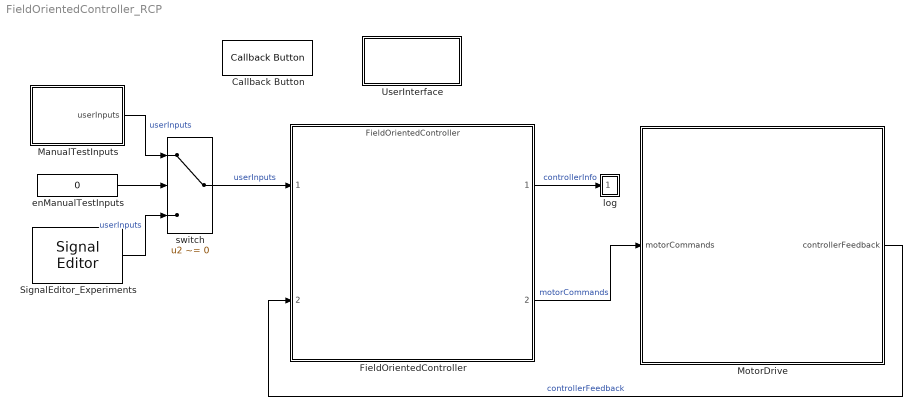
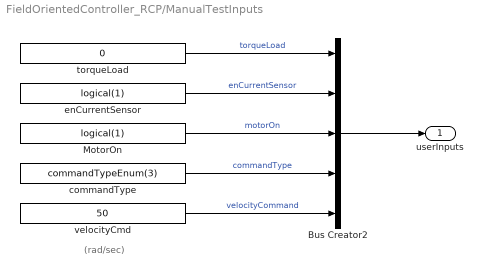
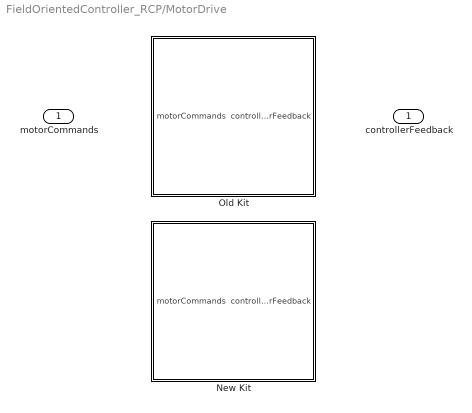
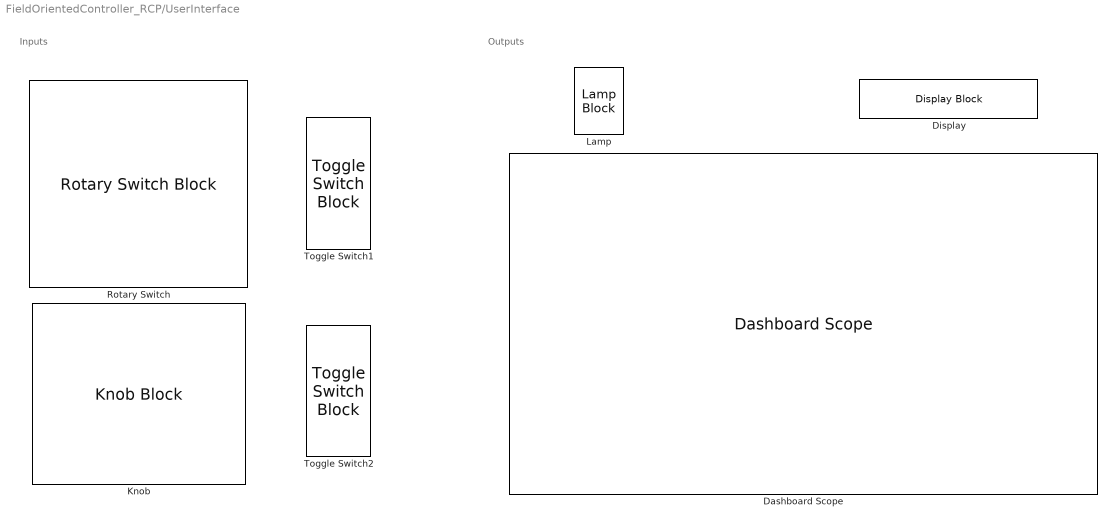
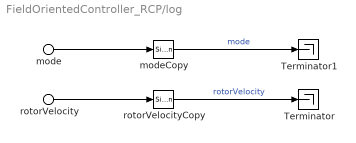
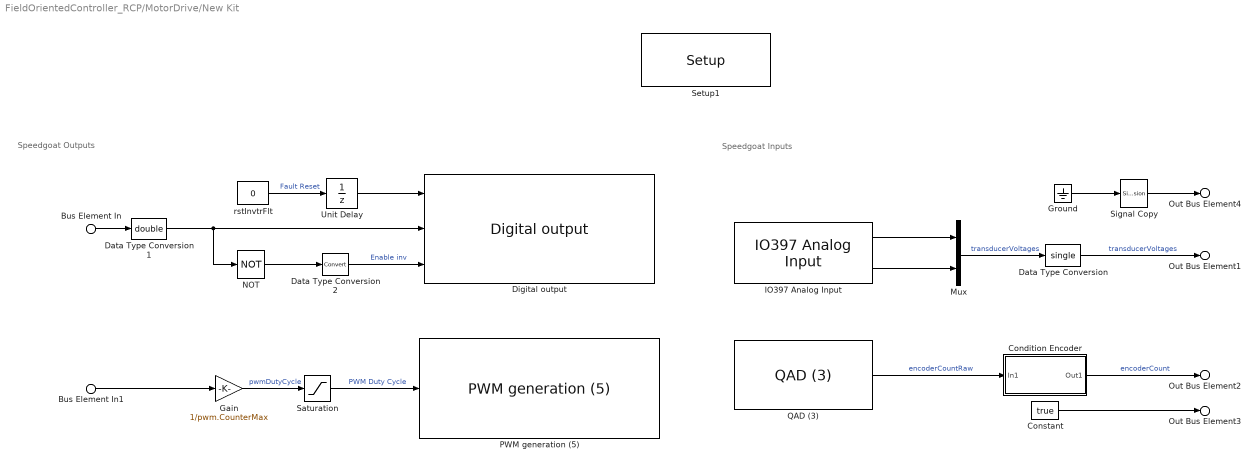
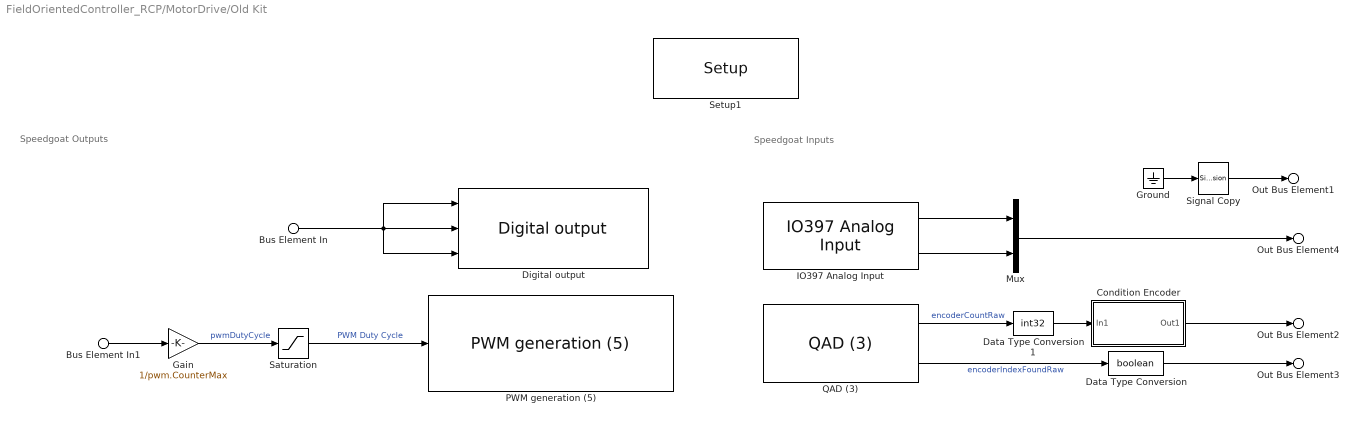
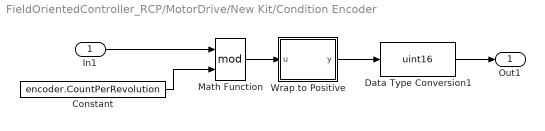
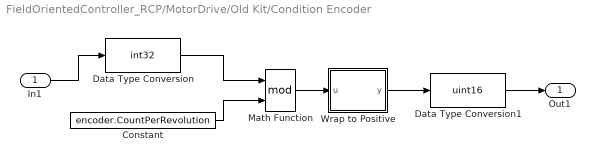
== matlab function FieldOrientedController_RCP/MotorDrive/Old Kit/Condition Encoder/Wrap to Positive ==
function y = fcn(u,cntsPerRevolution,positiveDirection)
% Guarantee the count is between 0 and cntsPerRevolution
% (Speedgoat count can be negative)

% Simplest case
y=u;

% % Max consecutive index pulses that can be missed
% maxIndexPulseMissesToRecoverFrom = 2;
% 
% for index = 1:maxIndexPulseMissesToRecoverFrom
%     if y >= cntsPerRevolution
%         y = y - cntsPerRevolution;
%     elseif y < -cntsPerRevolution
%         y = y + cntsPerRevolution;
%     end
% end
% 
% % Wrap angle to positive value
% if (y<0)
%     y = cntsPerRevolution + y;
% end

% Handle case of swapping encoder A & B signals
if positiveDirection ~= 1
    y = (cntsPerRevolution-1) - y;
end

== matlab function FieldOrientedController_RCP/MotorDrive/New Kit/Condition Encoder/Wrap to Positive ==
function y = fcn(u,cntsPerRevolution,positiveDirection)
% Guarantee the count is between 0 and cntsPerRevolution
% (Speedgoat count can be negative)

% Simplest case
y=u;

% % Max consecutive index pulses that can be missed
% maxIndexPulseMissesToRecoverFrom = 2;
% 
% for index = 1:maxIndexPulseMissesToRecoverFrom
%     if y >= cntsPerRevolution
%         y = y - cntsPerRevolution;
%     elseif y < -cntsPerRevolution
%         y = y + cntsPerRevolution;
%     end
% end
% 
% % Wrap angle to positive value
% if (y<0)
%     y = cntsPerRevolution + y;
% end

% Handle case of swapping encoder A & B signals
if positiveDirection ~= 1
    y = (cntsPerRevolution-1) - y;
end

/*
 * FieldOrientedController_RCP.cpp
 *
 * Sponsored Third Party Support License -- for use only to support
 * products interfaced to MathWorks software under terms specified in your
 * company's restricted use license agreement.
 *
 * Code generation for model "FieldOrientedController_RCP".
 *
 * Model version              : 2.10
 * Simulink Coder version : 9.4 (R2020b) 29-Jul-2020
 * C++ source code generated on : Wed Mar  3 10:56:14 2021
 *
 * Target selection: slrealtime.tlc
 * Note: GRT includes extra infrastructure and instrumentation for prototyping
 * Embedded hardware selection: Intel->x86-64 (Linux 64)
 * Code generation objectives: Unspecified
 * Validation result: Not run
 */

#include "FieldOrientedController_RCP.h"
#include "FieldOrientedController_RCP_private.h"
#include "rt_roundd_snf.h"

rtTimingBridge FieldOrientedController_RCP_TimingBrdg;
const userInputs FieldOrientedController_RCP_rtZuserInputs = {
  0.0,                                 /* torqueLoad */
  false,                               /* enCurrentSensor */
  false,                               /* motorOn */
  commandTypeEnum_Error,               /* commandType */
  0.0F                                 /* velocityCommand */
} ;                                    /* userInputs ground */

/* Block signals (default storage) */
B_FieldOrientedController_RCP_T FieldOrientedController_RCP_B;

/* Block states (default storage) */
DW_FieldOrientedController_RCP_T FieldOrientedController_RCP_DW;

/* Real-time model */
RT_MODEL_FieldOrientedController_RCP_T FieldOrientedController_RCP_M_ =
  RT_MODEL_FieldOrientedController_RCP_T();
RT_MODEL_FieldOrientedController_RCP_T *const FieldOrientedController_RCP_M =
  &FieldOrientedController_RCP_M_;

/*
 *   This function updates active task flag for each subrate.
 * The function is called in the model base rate function.
 * It maintains SampleHit information to allow scheduling
 * of the subrates from the base rate function.
 */
void rate_scheduler(void)
{
  /* Compute which subrates run during the next base time step.  Subrates
   * are an integer multiple of the base rate counter.  Therefore, the subtask
   * counter is reset when it reaches its limit (zero means run).
   */
  (FieldOrientedController_RCP_M->Timing.TaskCounters.TID[1])++;
  if ((FieldOrientedController_RCP_M->Timing.TaskCounters.TID[1]) > 19) {/* Sample time: [0.001s, 0.0s] */
    FieldOrientedController_RCP_M->Timing.TaskCounters.TID[1] = 0;
  }
}

/* Model step function for TID0 */
void FieldOrientedController_RCP_step0(void) /* Sample time: [5.0E-5s, 0.0s] */
{
  real_T u0;
  uint32_T u0_0;
  uint32_T u1;

  /* Update the flag to indicate when data transfers from
   *  Sample time: [5.0E-5s, 0.0s] to Sample time: [0.001s, 0.0s]  */
  FieldOrientedController_RCP_M->Timing.perTaskSampleHits[1] =
    (FieldOrientedController_RCP_M->Timing.RateInteraction.TID0_1 == 0);
  FieldOrientedController_RCP_M->Timing.RateInteraction.b_TID0_1 =
    (FieldOrientedController_RCP_M->Timing.RateInteraction.TID0_1 == 0);
  (FieldOrientedController_RCP_M->Timing.RateInteraction.TID0_1)++;
  if ((FieldOrientedController_RCP_M->Timing.RateInteraction.TID0_1) > 19) {
    FieldOrientedController_RCP_M->Timing.RateInteraction.TID0_1 = 0;
  }

  /* SignalConversion: '<S6>/Signal Copy' */
  FieldOrientedController_RCP_B.SignalCopy = 0.0F;

  /* S-Function (sg_fpga_IO397_ad): '<S6>/IO397 Analog Input' */

  /* Level2 S-Function Block: '<S6>/IO397 Analog Input' (sg_fpga_IO397_ad) */
  {
    SimStruct *rts = FieldOrientedController_RCP_M->childSfunctions[0];
    sfcnOutputs(rts,0);
  }

  /* DataTypeConversion: '<S6>/Data Type Conversion' */
  FieldOrientedController_RCP_B.transducerVoltages[0] = static_cast<real32_T>
    (FieldOrientedController_RCP_B.IO397AnalogInput_o1);
  FieldOrientedController_RCP_B.transducerVoltages[1] = static_cast<real32_T>
    (FieldOrientedController_RCP_B.IO397AnalogInput_o2);

  /* Constant: '<S6>/Constant' */
  FieldOrientedController_RCP_B.Constant =
    FieldOrientedController_RCP_cal->Constant_Value_h;

  /* S-Function (sg_fpga_qad_sf_3): '<S6>/QAD (3)' */

  /* Level2 S-Function Block: '<S6>/QAD (3)' (sg_fpga_qad_sf_3) */
  {
    SimStruct *rts = FieldOrientedController_RCP_M->childSfunctions[1];
    sfcnOutputs(rts,0);
  }

  /* Math: '<S7>/Math Function' incorporates:
   *  Constant: '<S7>/Constant'
   */
  u0_0 = FieldOrientedController_RCP_B.encoderCountRaw;
  u1 = FieldOrientedController_RCP_cal->Constant_Value;
  if (u1 == 0U) {
    /* Math: '<S7>/Math Function' */
    FieldOrientedController_RCP_B.MathFunction = u0_0;
  } else {
    /* Math: '<S7>/Math Function' */
    FieldOrientedController_RCP_B.MathFunction = u0_0 % u1;
  }

  /* End of Math: '<S7>/Math Function' */

  /* MATLAB Function: '<S7>/Wrap to Positive' */
  /* MATLAB Function 'MotorDrive/New Kit/Condition Encoder/Wrap to Positive': '<S8>:1' */
  /* '<S8>:1:6' */
  FieldOrientedController_RCP_B.y = FieldOrientedController_RCP_B.MathFunction;
  if (FieldOrientedController_RCP_cal->ConditionEncoder_positiveDirection != 1.0)
  {
    /* '<S8>:1:25' */
    /* '<S8>:1:26' */
    u0 = rt_roundd_snf
      ((FieldOrientedController_RCP_cal->ConditionEncoder_cntsPerRevolution -
        1.0) - static_cast<real_T>(FieldOrientedController_RCP_B.MathFunction));
    if (u0 < 4.294967296E+9) {
      if (u0 >= 0.0) {
        u0_0 = static_cast<uint32_T>(u0);
      } else {
        u0_0 = 0U;
      }
    } else {
      u0_0 = MAX_uint32_T;
    }

    FieldOrientedController_RCP_B.y = u0_0;
  }

  /* End of MATLAB Function: '<S7>/Wrap to Positive' */

  /* DataTypeConversion: '<S7>/Data Type Conversion1' */
  FieldOrientedController_RCP_B.DataTypeConversion1_e = static_cast<uint16_T>
    (FieldOrientedController_RCP_B.y);

  /* ModelReference generated from: '<Root>/FieldOrientedController' */
  FieldOrientedControllerTID0(&FieldOrientedController_RCP_B.transducerVoltages
    [0], &FieldOrientedController_RCP_B.Constant,
    &FieldOrientedController_RCP_B.DataTypeConversion1_e,
    &FieldOrientedController_RCP_B.enInverter,
    &FieldOrientedController_RCP_B.pwmCompare[0]);

  /* RateTransition generated from: '<Root>/FieldOrientedController' */
  if (FieldOrientedController_RCP_M->Timing.RateInteraction.TID0_1 == 1) {
    FieldOrientedController_RCP_DW.userInputs_RdBufIdx = static_cast<int8_T>
      (FieldOrientedController_RCP_DW.userInputs_RdBufIdx == 0);
  }

  /* RateTransition generated from: '<Root>/FieldOrientedController' */
  FieldOrientedController_RCP_B.userInputs_j =
    FieldOrientedController_RCP_DW.userInputs_Buf[FieldOrientedController_RCP_DW.userInputs_RdBufIdx];

  /* RateTransition generated from: '<Root>/FieldOrientedController' */
  if (FieldOrientedController_RCP_M->Timing.RateInteraction.TID0_1 == 1) {
    FieldOrientedController_RCP_DW.userInputs1_RdBufIdx = static_cast<int8_T>
      (FieldOrientedController_RCP_DW.userInputs1_RdBufIdx == 0);
  }

  /* RateTransition generated from: '<Root>/FieldOrientedController' */
  FieldOrientedController_RCP_B.userInputs1 =
    FieldOrientedController_RCP_DW.userInputs1_Buf[FieldOrientedController_RCP_DW.userInputs1_RdBufIdx];

  /* UnitDelay: '<S6>/Unit Delay' */
  FieldOrientedController_RCP_B.UnitDelay =
    FieldOrientedController_RCP_DW.UnitDelay_DSTATE;

  /* DataTypeConversion: '<S6>/Data Type Conversion1' */
  FieldOrientedController_RCP_B.DataTypeConversion1 =
    FieldOrientedController_RCP_B.enInverter;

  /* Logic: '<S6>/NOT' */
  FieldOrientedController_RCP_B.NOT =
    !(FieldOrientedController_RCP_B.DataTypeConversion1 != 0.0);

  /* DataTypeConversion: '<S6>/Data Type Conversion2' */
  FieldOrientedController_RCP_B.Enableinv = FieldOrientedController_RCP_B.NOT;

  /* S-Function (sg_fpga_do_sf_a2): '<S6>/Digital output' */

  /* Level2 S-Function Block: '<S6>/Digital output' (sg_fpga_do_sf_a2) */
  {
    SimStruct *rts = FieldOrientedController_RCP_M->childSfunctions[2];
    sfcnOutputs(rts,0);
  }

  /* Gain: '<S6>/Gain' */
  FieldOrientedController_RCP_B.pwmDutyCycle[0] = static_cast<real_T>
    (FieldOrientedController_RCP_cal->Gain_Gain) * 1.4901161193847656E-8 *
    static_cast<real_T>(FieldOrientedController_RCP_B.pwmCompare[0]);
  FieldOrientedController_RCP_B.pwmDutyCycle[1] = static_cast<real_T>
    (FieldOrientedController_RCP_cal->Gain_Gain) * 1.4901161193847656E-8 *
    static_cast<real_T>(FieldOrientedController_RCP_B.pwmCompare[1]);
  FieldOrientedController_RCP_B.pwmDutyCycle[2] = static_cast<real_T>
    (FieldOrientedController_RCP_cal->Gain_Gain) * 1.4901161193847656E-8 *
    static_cast<real_T>(FieldOrientedController_RCP_B.pwmCompare[2]);

  /* Saturate: '<S6>/Saturation' */
  u0 = FieldOrientedController_RCP_B.pwmDutyCycle[0];
  if (u0 > FieldOrientedController_RCP_cal->Saturation_UpperSat) {
    u0 = FieldOrientedController_RCP_cal->Saturation_UpperSat;
  } else {
    if (u0 < FieldOrientedController_RCP_cal->Saturation_LowerSat) {
      u0 = FieldOrientedController_RCP_cal->Saturation_LowerSat;
    }
  }

  /* Saturate: '<S6>/Saturation' */
  FieldOrientedController_RCP_B.PWMDutyCycle[0] = u0;

  /* Saturate: '<S6>/Saturation' */
  u0 = FieldOrientedController_RCP_B.pwmDutyCycle[1];
  if (u0 > FieldOrientedController_RCP_cal->Saturation_UpperSat) {
    u0 = FieldOrientedController_RCP_cal->Saturation_UpperSat;
  } else {
    if (u0 < FieldOrientedController_RCP_cal->Saturation_LowerSat) {
      u0 = FieldOrientedController_RCP_cal->Saturation_LowerSat;
    }
  }

  /* Saturate: '<S6>/Saturation' */
  FieldOrientedController_RCP_B.PWMDutyCycle[1] = u0;

  /* Saturate: '<S6>/Saturation' */
  u0 = FieldOrientedController_RCP_B.pwmDutyCycle[2];
  if (u0 > FieldOrientedController_RCP_cal->Saturation_UpperSat) {
    u0 = FieldOrientedController_RCP_cal->Saturation_UpperSat;
  } else {
    if (u0 < FieldOrientedController_RCP_cal->Saturation_LowerSat) {
      u0 = FieldOrientedController_RCP_cal->Saturation_LowerSat;
    }
  }

  /* Saturate: '<S6>/Saturation' */
  FieldOrientedController_RCP_B.PWMDutyCycle[2] = u0;

  /* S-Function (sg_fpga_pwm_sf_5): '<S6>/PWM generation (5)' */

  /* Level2 S-Function Block: '<S6>/PWM generation (5)' (sg_fpga_pwm_sf_5) */
  {
    SimStruct *rts = FieldOrientedController_RCP_M->childSfunctions[3];
    sfcnOutputs(rts,0);
  }

  /* Update for UnitDelay: '<S6>/Unit Delay' incorporates:
   *  Constant: '<S6>/rstInvtrFlt'
   */
  FieldOrientedController_RCP_DW.UnitDelay_DSTATE =
    FieldOrientedController_RCP_cal->rstInvtrFlt_Value;

  /* Update absolute time */
  /* The "clockTick0" counts the number of times the code of this task has
   * been executed. The absolute time is the multiplication of "clockTick0"
   * and "Timing.stepSize0". Size of "clockTick0" ensures timer will not
   * overflow during the application lifespan selected.
   * Timer of this task consists of two 32 bit unsigned integers.
   * The two integers represent the low bits Timing.clockTick0 and the high bits
   * Timing.clockTickH0. When the low bit overflows to 0, the high bits increment.
   */
  if (!(++FieldOrientedController_RCP_M->Timing.clockTick0)) {
    ++FieldOrientedController_RCP_M->Timing.clockTickH0;
  }

  FieldOrientedController_RCP_M->Timing.t[0] =
    FieldOrientedController_RCP_M->Timing.clockTick0 *
    FieldOrientedController_RCP_M->Timing.stepSize0 +
    FieldOrientedController_RCP_M->Timing.clockTickH0 *
    FieldOrientedController_RCP_M->Timing.stepSize0 * 4294967296.0;
}

/* Model step function for TID1 */
void FieldOrientedController_RCP_step1(void) /* Sample time: [0.001s, 0.0s] */
{
  /* Constant: '<S1>/velocityCmd' */
  FieldOrientedController_RCP_B.velocityCommand =
    FieldOrientedController_RCP_cal->velocityCmd_Value;

  /* BusCreator: '<S1>/Bus Creator2' incorporates:
   *  Constant: '<S1>/MotorOn'
   *  Constant: '<S1>/commandType'
   *  Constant: '<S1>/enCurrentSensor'
   *  Constant: '<S1>/torqueLoad'
   */
  FieldOrientedController_RCP_B.BusCreator2.torqueLoad =
    FieldOrientedController_RCP_cal->torqueLoad_Value;
  FieldOrientedController_RCP_B.BusCreator2.enCurrentSensor =
    FieldOrientedController_RCP_cal->enCurrentSensor_Value;
  FieldOrientedController_RCP_B.BusCreator2.motorOn =
    FieldOrientedController_RCP_cal->MotorOn_Value;
  FieldOrientedController_RCP_B.BusCreator2.commandType =
    FieldOrientedController_RCP_cal->commandType_Value;
  FieldOrientedController_RCP_B.BusCreator2.velocityCommand =
    FieldOrientedController_RCP_B.velocityCommand;

  /* FromWorkspace: '<S3>/fromWS_Signal 1' */
  {
    real_T t = (((FieldOrientedController_RCP_M->Timing.clockTick1+
                  FieldOrientedController_RCP_M->Timing.clockTickH1*
                  4294967296.0)) * 0.001);
    real_T *pTimeValues = static_cast<real_T *>
      (FieldOrientedController_RCP_DW.fromWS_Signal1_PWORK.TimePtr[0]);
    real_T *pDataValues = static_cast<real_T *>
      (FieldOrientedController_RCP_DW.fromWS_Signal1_PWORK.DataPtr[0]);
    if (t < pTimeValues[0]) {
      FieldOrientedController_RCP_B.userInputs_a.torqueLoad =
        FieldOrientedController_RCP_rtZuserInputs.torqueLoad;
    } else if (t >= pTimeValues[1]) {
      FieldOrientedController_RCP_B.userInputs_a.torqueLoad = pDataValues[1];
    } else {
      int_T currTimeIndex =
        FieldOrientedController_RCP_DW.fromWS_Signal1_IWORK.PrevIndex[0];
      if (t < pTimeValues[currTimeIndex]) {
        while (t < pTimeValues[currTimeIndex]) {
          currTimeIndex--;
        }
      } else {
        while (t >= pTimeValues[currTimeIndex + 1]) {
          currTimeIndex++;
        }
      }

      FieldOrientedController_RCP_B.userInputs_a.torqueLoad =
        pDataValues[currTimeIndex];
      FieldOrientedController_RCP_DW.fromWS_Signal1_IWORK.PrevIndex[0] =
        currTimeIndex;
    }
  }

  {
    real_T t = (((FieldOrientedController_RCP_M->Timing.clockTick1+
                  FieldOrientedController_RCP_M->Timing.clockTickH1*
                  4294967296.0)) * 0.001);
    real_T *pTimeValues = static_cast<real_T *>
      (FieldOrientedController_RCP_DW.fromWS_Signal1_PWORK.TimePtr[1]);
    boolean_T *pDataValues = static_cast<boolean_T *>
      (FieldOrientedController_RCP_DW.fromWS_Signal1_PWORK.DataPtr[1]);
    if (t < pTimeValues[0]) {
      FieldOrientedController_RCP_B.userInputs_a.enCurrentSensor =
        FieldOrientedController_RCP_rtZuserInputs.enCurrentSensor;
    } else if (t >= pTimeValues[1]) {
      FieldOrientedController_RCP_B.userInputs_a.enCurrentSensor = pDataValues[1];
    } else {
      int_T currTimeIndex =
        FieldOrientedController_RCP_DW.fromWS_Signal1_IWORK.PrevIndex[1];
      if (t < pTimeValues[currTimeIndex]) {
        while (t < pTimeValues[currTimeIndex]) {
          currTimeIndex--;
        }
      } else {
        while (t >= pTimeValues[currTimeIndex + 1]) {
          currTimeIndex++;
        }
      }

      FieldOrientedController_RCP_B.userInputs_a.enCurrentSensor =
        pDataValues[currTimeIndex];
      FieldOrientedController_RCP_DW.fromWS_Signal1_IWORK.PrevIndex[1] =
        currTimeIndex;
    }
  }

  {
    real_T t = (((FieldOrientedController_RCP_M->Timing.clockTick1+
                  FieldOrientedController_RCP_M->Timing.clockTickH1*
                  4294967296.0)) * 0.001);
    real_T *pTimeValues = static_cast<real_T *>
      (FieldOrientedController_RCP_DW.fromWS_Signal1_PWORK.TimePtr[2]);
    boolean_T *pDataValues = static_cast<boolean_T *>
      (FieldOrientedController_RCP_DW.fromWS_Signal1_PWORK.DataPtr[2]);
    if (t < pTimeValues[0]) {
      FieldOrientedController_RCP_B.userInputs_a.motorOn =
        FieldOrientedController_RCP_rtZuserInputs.motorOn;
    } else if (t >= pTimeValues[5]) {
      FieldOrientedController_RCP_B.userInputs_a.motorOn = pDataValues[5];
    } else {
      int_T currTimeIndex =
        FieldOrientedController_RCP_DW.fromWS_Signal1_IWORK.PrevIndex[2];
      if (t < pTimeValues[currTimeIndex]) {
        while (t < pTimeValues[currTimeIndex]) {
          currTimeIndex--;
        }
      } else {
        while (t >= pTimeValues[currTimeIndex + 1]) {
          currTimeIndex++;
        }
      }

      FieldOrientedController_RCP_B.userInputs_a.motorOn =
        pDataValues[currTimeIndex];
      FieldOrientedController_RCP_DW.fromWS_Signal1_IWORK.PrevIndex[2] =
        currTimeIndex;
    }
  }

  {
    real_T t = (((FieldOrientedController_RCP_M->Timing.clockTick1+
                  FieldOrientedController_RCP_M->Timing.clockTickH1*
                  4294967296.0)) * 0.001);
    real_T *pTimeValues = static_cast<real_T *>
      (FieldOrientedController_RCP_DW.fromWS_Signal1_PWORK.TimePtr[3]);
    commandTypeEnum *pDataValues = static_cast<commandTypeEnum *>
      (FieldOrientedController_RCP_DW.fromWS_Signal1_PWORK.DataPtr[3]);
    if (t < pTimeValues[0]) {
      FieldOrientedController_RCP_B.userInputs_a.commandType =
        FieldOrientedController_RCP_rtZuserInputs.commandType;
    } else if (t >= pTimeValues[3]) {
      FieldOrientedController_RCP_B.userInputs_a.commandType = pDataValues[3];
    } else {
      int_T currTimeIndex =
        FieldOrientedController_RCP_DW.fromWS_Signal1_IWORK.PrevIndex[3];
      if (t < pTimeValues[currTimeIndex]) {
        while (t < pTimeValues[currTimeIndex]) {
          currTimeIndex--;
        }
      } else {
        while (t >= pTimeValues[currTimeIndex + 1]) {
          currTimeIndex++;
        }
      }

      FieldOrientedController_RCP_B.userInputs_a.commandType =
        pDataValues[currTimeIndex];
      FieldOrientedController_RCP_DW.fromWS_Signal1_IWORK.PrevIndex[3] =
        currTimeIndex;
    }
  }

  {
    real_T t = (((FieldOrientedController_RCP_M->Timing.clockTick1+
                  FieldOrientedController_RCP_M->Timing.clockTickH1*
                  4294967296.0)) * 0.001);
    real_T *pTimeValues = static_cast<real_T *>
      (FieldOrientedController_RCP_DW.fromWS_Signal1_PWORK.TimePtr[4]);
    real32_T *pDataValues = static_cast<real32_T *>
      (FieldOrientedController_RCP_DW.fromWS_Signal1_PWORK.DataPtr[4]);
    if (t < pTimeValues[0]) {
      FieldOrientedController_RCP_B.userInputs_a.velocityCommand =
        FieldOrientedController_RCP_rtZuserInputs.velocityCommand;
    } else if (t >= pTimeValues[8]) {
      FieldOrientedController_RCP_B.userInputs_a.velocityCommand = pDataValues[8];
    } else {
      int_T currTimeIndex =
        FieldOrientedController_RCP_DW.fromWS_Signal1_IWORK.PrevIndex[4];
      if (t < pTimeValues[currTimeIndex]) {
        while (t < pTimeValues[currTimeIndex]) {
          currTimeIndex--;
        }
      } else {
        while (t >= pTimeValues[currTimeIndex + 1]) {
          currTimeIndex++;
        }
      }

      FieldOrientedController_RCP_B.userInputs_a.velocityCommand =
        pDataValues[currTimeIndex];
      FieldOrientedController_RCP_DW.fromWS_Signal1_IWORK.PrevIndex[4] =
        currTimeIndex;
    }
  }

  /* Switch: '<Root>/switch' incorporates:
   *  Constant: '<Root>/enManualTestInputs'
   */
  if (FieldOrientedController_RCP_cal->enManualTestInputs_Value) {
    /* Switch: '<Root>/switch' */
    FieldOrientedController_RCP_B.userInputs_e =
      FieldOrientedController_RCP_B.BusCreator2;
  } else {
    /* Switch: '<Root>/switch' */
    FieldOrientedController_RCP_B.userInputs_e =
      FieldOrientedController_RCP_B.userInputs_a;
  }

  /* End of Switch: '<Root>/switch' */

  /* ModelReference generated from: '<Root>/FieldOrientedController' */
  FieldOrientedControllerTID1
    (&FieldOrientedController_RCP_B.userInputs_e.motorOn,
     &FieldOrientedController_RCP_B.userInputs_e.commandType,
     &FieldOrientedController_RCP_B.userInputs_e.velocityCommand,
     &FieldOrientedController_RCP_B.Constant,
     &FieldOrientedController_RCP_B.mode,
     &FieldOrientedController_RCP_B.rotorVelocity);

  /* SignalConversion: '<S5>/modeCopy' */
  FieldOrientedController_RCP_B.mode_j = FieldOrientedController_RCP_B.mode;

  /* SignalConversion: '<S5>/rotorVelocityCopy' */
  FieldOrientedController_RCP_B.rotorVelocityCopy =
    FieldOrientedController_RCP_B.rotorVelocity;

  /* RateTransition generated from: '<Root>/FieldOrientedController' */
  FieldOrientedController_RCP_DW.userInputs_WrBufIdx = static_cast<int8_T>
    (FieldOrientedController_RCP_DW.userInputs_WrBufIdx == 0);
  FieldOrientedController_RCP_DW.userInputs_Buf[FieldOrientedController_RCP_DW.userInputs_WrBufIdx]
    = FieldOrientedController_RCP_B.userInputs_e.torqueLoad;

  /* RateTransition generated from: '<Root>/FieldOrientedController' */
  FieldOrientedController_RCP_DW.userInputs1_WrBufIdx = static_cast<int8_T>
    (FieldOrientedController_RCP_DW.userInputs1_WrBufIdx == 0);
  FieldOrientedController_RCP_DW.userInputs1_Buf[FieldOrientedController_RCP_DW.userInputs1_WrBufIdx]
    = FieldOrientedController_RCP_B.userInputs_e.enCurrentSensor;

  /* Update absolute time */
  /* The "clockTick1" counts the number of times the code of this task has
   * been executed. The resolution of this integer timer is 0.001, which is the step size
   * of the task. Size of "clockTick1" ensures timer will not overflow during the
   * application lifespan selected.
   * Timer of this task consists of two 32 bit unsigned integers.
   * The two integers represent the low bits Timing.clockTick1 and the high bits
   * Timing.clockTickH1. When the low bit overflows to 0, the high bits increment.
   */
  FieldOrientedController_RCP_M->Timing.clockTick1++;
  if (!FieldOrientedController_RCP_M->Timing.clockTick1) {
    FieldOrientedController_RCP_M->Timing.clockTickH1++;
  }
}

/* Model step wrapper function for compatibility with a static main program */
void FieldOrientedController_RCP_step(int_T tid)
{
  switch (tid) {
   case 0 :
    FieldOrientedController_RCP_step0();
    break;

   case 1 :
    FieldOrientedController_RCP_step1();
    break;

   default :
    break;
  }
}
